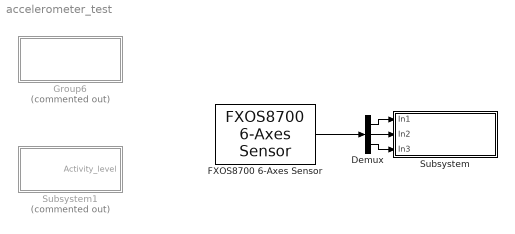
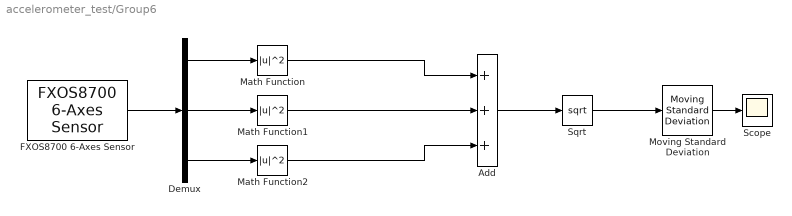
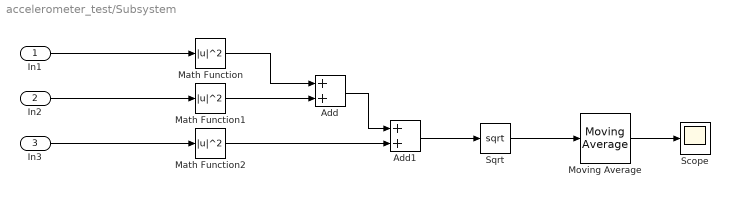
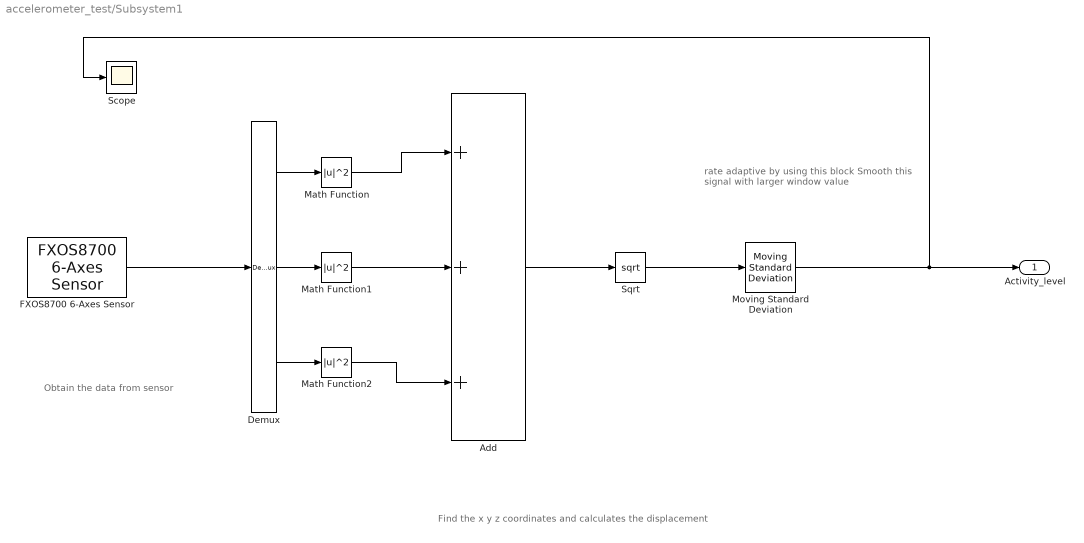
/*
 * Academic License - for use in teaching, academic research, and meeting
 * course requirements at degree granting institutions only.  Not for
 * government, commercial, or other organizational use.
 *
 * File: accelerometer_test.c
 *
 * Code generated for Simulink model 'accelerometer_test'.
 *
 * Model version                  : 6.2
 * Simulink Coder version         : 9.8 (R2022b) 13-May-2022
 * C/C++ source code generated on : Sun Nov 27 21:31:28 2022
 *
 * Target selection: ert.tlc
 * Embedded hardware selection: ARM Compatible->ARM Cortex
 * Code generation objectives: Unspecified
 * Validation result: Not run
 */

#include "accelerometer_test.h"
#include "accelerometer_test_types.h"
#include <string.h>
#include <math.h>
#include "rtwtypes.h"
#include <stddef.h>
#include "MW_I2C.h"
#include "accelerometer_test_private.h"
#include "accelerometer_test_dt.h"

/* Block signals (default storage) */
B_accelerometer_test_T accelerometer_test_B;

/* Block states (default storage) */
DW_accelerometer_test_T accelerometer_test_DW;

/* Real-time model */
static RT_MODEL_accelerometer_test_T accelerometer_test_M_;
RT_MODEL_accelerometer_test_T *const accelerometer_test_M =
  &accelerometer_test_M_;

/* Forward declaration for local functions */
static void accelerometer__SystemCore_setup(freedomk64f_fxos8700_accelero_T *obj);
static void acceleromete_SystemCore_setup_p(dsp_simulink_MovingAverage_ac_T *obj);
static void rate_monotonic_scheduler(void);

/*
 * Set which subrates need to run this base step (base rate always runs).
 * This function must be called prior to calling the model step function
 * in order to remember which rates need to run this base step.  The
 * buffering of events allows for overlapping preemption.
 */
void accelerometer_test_SetEventsForThisBaseStep(boolean_T *eventFlags)
{
  /* Task runs when its counter is zero, computed via rtmStepTask macro */
  eventFlags[1] = ((boolean_T)rtmStepTask(accelerometer_test_M, 1));
}

/*
 *         This function updates active task flag for each subrate
 *         and rate transition flags for tasks that exchange data.
 *         The function assumes rate-monotonic multitasking scheduler.
 *         The function must be called at model base rate so that
 *         the generated code self-manages all its subrates and rate
 *         transition flags.
 */
static void rate_monotonic_scheduler(void)
{
  /* Compute which subrates run during the next base time step.  Subrates
   * are an integer multiple of the base rate counter.  Therefore, the subtask
   * counter is reset when it reaches its limit (zero means run).
   */
  (accelerometer_test_M->Timing.TaskCounters.TID[1])++;
  if ((accelerometer_test_M->Timing.TaskCounters.TID[1]) > 99) {/* Sample time: [0.1s, 0.0s] */
    accelerometer_test_M->Timing.TaskCounters.TID[1] = 0;
  }
}

static void accelerometer__SystemCore_setup(freedomk64f_fxos8700_accelero_T *obj)
{
  MW_I2C_Mode_Type ModeType;
  uint32_T i2cname;
  uint8_T b_SwappedDataBytes[2];
  uint8_T b_RegisterValue;
  uint8_T status;
  obj->isInitialized = 1;
  ModeType = MW_I2C_MASTER;
  i2cname = 0;
  obj->i2cobj.MW_I2C_HANDLE = MW_I2C_Open(i2cname, ModeType);
  obj->i2cobj.BusSpeed = 100000U;
  MW_I2C_SetBusSpeed(obj->i2cobj.MW_I2C_HANDLE, obj->i2cobj.BusSpeed);
  b_SwappedDataBytes[0] = 43U;
  b_SwappedDataBytes[1] = 64U;
  MW_I2C_MasterWrite(obj->i2cobj.MW_I2C_HANDLE, 29U, &b_SwappedDataBytes[0], 2U,
                     false, false);
  OSA_TimeDelay(500U);
  status = 42U;
  status = MW_I2C_MasterWrite(obj->i2cobj.MW_I2C_HANDLE, 29U, &status, 1U, true,
    false);
  if (status == 0) {
    MW_I2C_MasterRead(obj->i2cobj.MW_I2C_HANDLE, 29U, &status, 1U, false, true);
    memcpy((void *)&b_RegisterValue, (void *)&status, (size_t)1 * sizeof(uint8_T));
  } else {
    b_RegisterValue = 0U;
  }

  b_SwappedDataBytes[0] = 42U;
  b_SwappedDataBytes[1] = (uint8_T)(b_RegisterValue & 254);
  MW_I2C_MasterWrite(obj->i2cobj.MW_I2C_HANDLE, 29U, &b_SwappedDataBytes[0], 2U,
                     false, false);
  b_SwappedDataBytes[0] = 14U;
  b_SwappedDataBytes[1] = 1U;
  MW_I2C_MasterWrite(obj->i2cobj.MW_I2C_HANDLE, 29U, &b_SwappedDataBytes[0], 2U,
                     false, false);
  b_SwappedDataBytes[0] = 91U;
  b_SwappedDataBytes[1] = 0U;
  MW_I2C_MasterWrite(obj->i2cobj.MW_I2C_HANDLE, 29U, &b_SwappedDataBytes[0], 2U,
                     false, false);
  b_SwappedDataBytes[0] = 42U;
  b_SwappedDataBytes[1] = 1U;
  MW_I2C_MasterWrite(obj->i2cobj.MW_I2C_HANDLE, 29U, &b_SwappedDataBytes[0], 2U,
                     false, false);
  obj->isSetupComplete = true;
}

static void acceleromete_SystemCore_setup_p(dsp_simulink_MovingAverage_ac_T *obj)
{
  obj->isSetupComplete = false;
  obj->isInitialized = 1;
  obj->NumChannels = 1;
  obj->FrameLength = 1;
  obj->_pobj0.isInitialized = 0;
  obj->_pobj0.isInitialized = 0;
  obj->pStatistic = &obj->_pobj0;
  obj->isSetupComplete = true;
  obj->TunablePropsChanged = false;
}

/* Model step function for TID0 */
void accelerometer_test_step0(void)    /* Sample time: [0.001s, 0.0s] */
{
  {                                    /* Sample time: [0.001s, 0.0s] */
    rate_monotonic_scheduler();
  }

  /* External mode */
  rtExtModeUploadCheckTrigger(2);
  rtExtModeUpload(0, (real_T)accelerometer_test_M->Timing.taskTime0);

  /* signal main to stop simulation */
  {                                    /* Sample time: [0.001s, 0.0s] */
    if ((rtmGetTFinal(accelerometer_test_M)!=-1) &&
        !((rtmGetTFinal(accelerometer_test_M)-
           accelerometer_test_M->Timing.taskTime0) >
          accelerometer_test_M->Timing.taskTime0 * (DBL_EPSILON))) {
      rtmSetErrorStatus(accelerometer_test_M, "Simulation finished");
    }

    if (rtmGetStopRequested(accelerometer_test_M)) {
      rtmSetErrorStatus(accelerometer_test_M, "Simulation finished");
    }
  }

  /* Update absolute time */
  /* The "clockTick0" counts the number of times the code of this task has
   * been executed. The absolute time is the multiplication of "clockTick0"
   * and "Timing.stepSize0". Size of "clockTick0" ensures timer will not
   * overflow during the application lifespan selected.
   */
  accelerometer_test_M->Timing.taskTime0 =
    ((time_T)(++accelerometer_test_M->Timing.clockTick0)) *
    accelerometer_test_M->Timing.stepSize0;
}

/* Model step function for TID1 */
void accelerometer_test_step1(void)    /* Sample time: [0.1s, 0.0s] */
{
  g_dsp_internal_SlidingWindowA_T *obj;
  real_T rtb_FXOS87006AxesSensor_idx_0;
  real_T rtb_FXOS87006AxesSensor_idx_1;
  real_T rtb_FXOS87006AxesSensor_idx_2;
  real_T z;
  int32_T i;
  int16_T b_RegisterValue[3];
  uint8_T output_raw[6];
  uint8_T b_x[2];
  uint8_T y[2];
  uint8_T status;

  /* MATLABSystem: '<Root>/FXOS8700 6-Axes Sensor' */
  if (accelerometer_test_DW.obj_i.SampleTime !=
      accelerometer_test_P.FXOS87006AxesSensor_SampleTime) {
    accelerometer_test_DW.obj_i.SampleTime =
      accelerometer_test_P.FXOS87006AxesSensor_SampleTime;
  }

  status = 1U;
  status = MW_I2C_MasterWrite(accelerometer_test_DW.obj_i.i2cobj.MW_I2C_HANDLE,
    29U, &status, 1U, true, false);
  if (status == 0) {
    MW_I2C_MasterRead(accelerometer_test_DW.obj_i.i2cobj.MW_I2C_HANDLE, 29U,
                      &output_raw[0], 6U, false, true);
    memcpy((void *)&b_RegisterValue[0], (void *)&output_raw[0], (size_t)3 *
           sizeof(int16_T));
    memcpy((void *)&y[0], (void *)&b_RegisterValue[0], (size_t)2 * sizeof
           (uint8_T));
    b_x[0] = y[1];
    b_x[1] = y[0];
    memcpy((void *)&b_RegisterValue[0], (void *)&b_x[0], (size_t)1 * sizeof
           (int16_T));
    memcpy((void *)&y[0], (void *)&b_RegisterValue[1], (size_t)2 * sizeof
           (uint8_T));
    b_x[0] = y[1];
    b_x[1] = y[0];
    memcpy((void *)&b_RegisterValue[1], (void *)&b_x[0], (size_t)1 * sizeof
           (int16_T));
    memcpy((void *)&y[0], (void *)&b_RegisterValue[2], (size_t)2 * sizeof
           (uint8_T));
    b_x[0] = y[1];
    b_x[1] = y[0];
    memcpy((void *)&b_RegisterValue[2], (void *)&b_x[0], (size_t)1 * sizeof
           (int16_T));
  } else {
    b_RegisterValue[0] = 0;
    b_RegisterValue[1] = 0;
    b_RegisterValue[2] = 0;
  }

  rtb_FXOS87006AxesSensor_idx_0 = (real_T)(int16_T)(b_RegisterValue[0] >> 2) *
    2.0 * 0.244 / 1000.0;
  rtb_FXOS87006AxesSensor_idx_1 = (real_T)(int16_T)(b_RegisterValue[1] >> 2) *
    2.0 * 0.244 / 1000.0;
  rtb_FXOS87006AxesSensor_idx_2 = (real_T)(int16_T)(b_RegisterValue[2] >> 2) *
    2.0 * 0.244 / 1000.0;

  /* End of MATLABSystem: '<Root>/FXOS8700 6-Axes Sensor' */

  /* Sqrt: '<S1>/Sqrt' incorporates:
   *  Math: '<S1>/Math Function'
   *  Math: '<S1>/Math Function1'
   *  Math: '<S1>/Math Function2'
   *  Sum: '<S1>/Add'
   *  Sum: '<S1>/Add1'
   *
   * About '<S1>/Math Function':
   *  Operator: magnitude^2
   *
   * About '<S1>/Math Function1':
   *  Operator: magnitude^2
   *
   * About '<S1>/Math Function2':
   *  Operator: magnitude^2
   */
  rtb_FXOS87006AxesSensor_idx_0 = sqrt((rtb_FXOS87006AxesSensor_idx_0 *
    rtb_FXOS87006AxesSensor_idx_0 + rtb_FXOS87006AxesSensor_idx_1 *
    rtb_FXOS87006AxesSensor_idx_1) + rtb_FXOS87006AxesSensor_idx_2 *
    rtb_FXOS87006AxesSensor_idx_2);

  /* MATLABSystem: '<S1>/Moving Average' */
  if (accelerometer_test_DW.obj.TunablePropsChanged) {
    accelerometer_test_DW.obj.TunablePropsChanged = false;
  }

  obj = accelerometer_test_DW.obj.pStatistic;
  if (obj->isInitialized != 1) {
    obj->isSetupComplete = false;
    obj->isInitialized = 1;
    obj->pCumSum = 0.0;
    for (i = 0; i < 599; i++) {
      obj->pCumSumRev[i] = 0.0;
    }

    obj->pCumRevIndex = 1.0;
    obj->pModValueRev = 0.0;
    obj->isSetupComplete = true;
    obj->pCumSum = 0.0;
    for (i = 0; i < 599; i++) {
      obj->pCumSumRev[i] = 0.0;
    }

    obj->pCumRevIndex = 1.0;
    obj->pModValueRev = 0.0;
  }

  rtb_FXOS87006AxesSensor_idx_1 = obj->pCumRevIndex;
  rtb_FXOS87006AxesSensor_idx_2 = obj->pCumSum;
  for (i = 0; i < 599; i++) {
    accelerometer_test_B.csumrev[i] = obj->pCumSumRev[i];
  }

  accelerometer_test_B.modValueRev = obj->pModValueRev;
  z = 0.0;

  /* MATLABSystem: '<S1>/Moving Average' */
  accelerometer_test_B.MovingAverage = 0.0;

  /* MATLABSystem: '<S1>/Moving Average' */
  rtb_FXOS87006AxesSensor_idx_2 += rtb_FXOS87006AxesSensor_idx_0;
  if (accelerometer_test_B.modValueRev == 0.0) {
    z = accelerometer_test_B.csumrev[(int32_T)rtb_FXOS87006AxesSensor_idx_1 - 1]
      + rtb_FXOS87006AxesSensor_idx_2;
  }

  accelerometer_test_B.csumrev[(int32_T)rtb_FXOS87006AxesSensor_idx_1 - 1] =
    rtb_FXOS87006AxesSensor_idx_0;
  if (rtb_FXOS87006AxesSensor_idx_1 != 599.0) {
    rtb_FXOS87006AxesSensor_idx_1++;
  } else {
    rtb_FXOS87006AxesSensor_idx_1 = 1.0;
    rtb_FXOS87006AxesSensor_idx_2 = 0.0;
    for (i = 597; i >= 0; i--) {
      accelerometer_test_B.csumrev[i] += accelerometer_test_B.csumrev[i + 1];
    }
  }

  if (accelerometer_test_B.modValueRev == 0.0) {
    /* MATLABSystem: '<S1>/Moving Average' */
    accelerometer_test_B.MovingAverage = z / 600.0;
  }

  obj->pCumSum = rtb_FXOS87006AxesSensor_idx_2;
  for (i = 0; i < 599; i++) {
    obj->pCumSumRev[i] = accelerometer_test_B.csumrev[i];
  }

  obj->pCumRevIndex = rtb_FXOS87006AxesSensor_idx_1;
  if (accelerometer_test_B.modValueRev > 0.0) {
    obj->pModValueRev = accelerometer_test_B.modValueRev - 1.0;
  } else {
    obj->pModValueRev = 0.0;
  }

  rtExtModeUpload(1, (real_T)((accelerometer_test_M->Timing.clockTick1) * 0.1));

  /* Update absolute time */
  /* The "clockTick1" counts the number of times the code of this task has
   * been executed. The resolution of this integer timer is 0.1, which is the step size
   * of the task. Size of "clockTick1" ensures timer will not overflow during the
   * application lifespan selected.
   */
  accelerometer_test_M->Timing.clockTick1++;
}

/* Use this function only if you need to maintain compatibility with an existing static main program. */
void accelerometer_test_step(int_T tid)
{
  switch (tid) {
   case 0 :
    accelerometer_test_step0();
    break;

   case 1 :
    accelerometer_test_step1();
    break;

   default :
    /* do nothing */
    break;
  }
}
